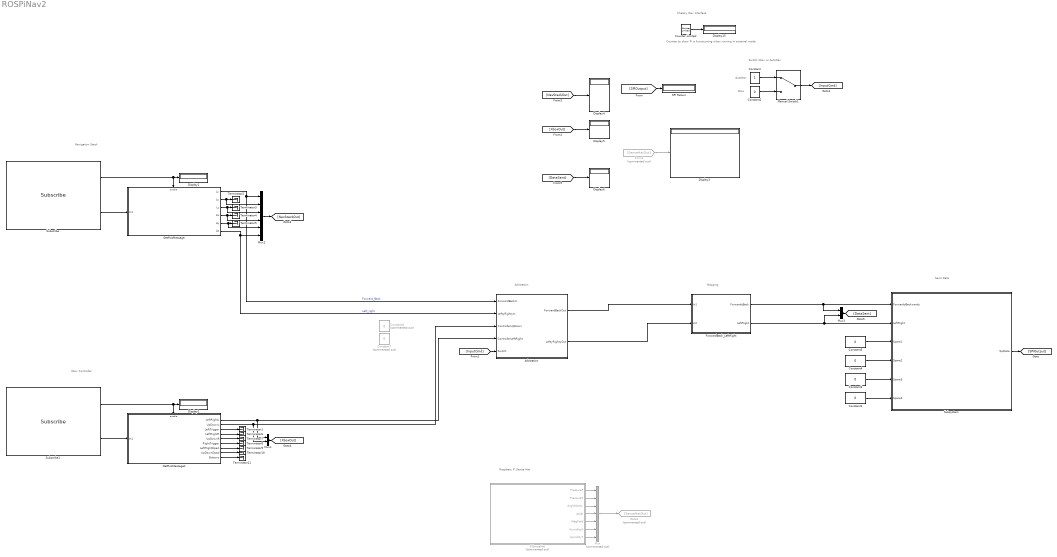
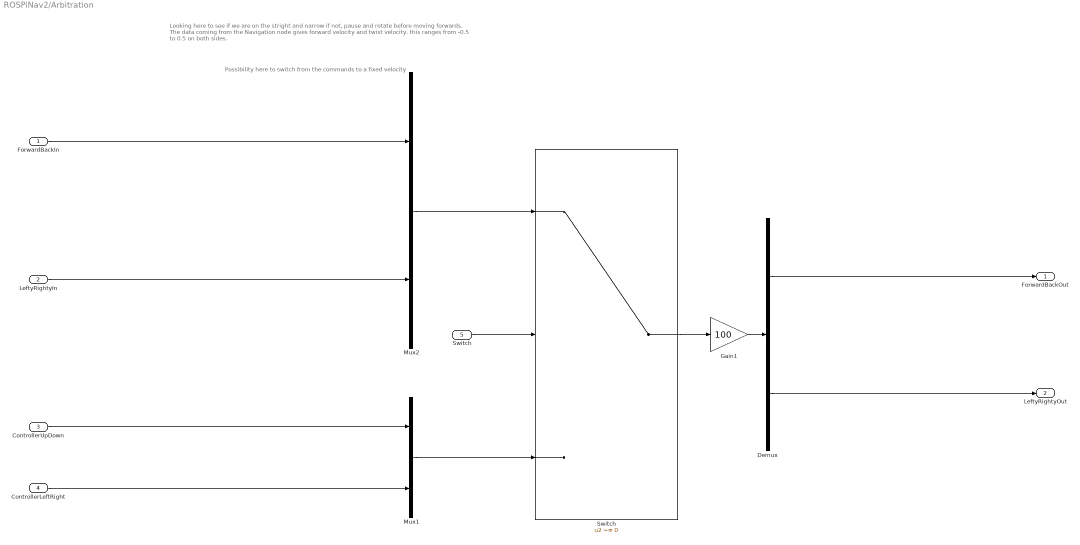
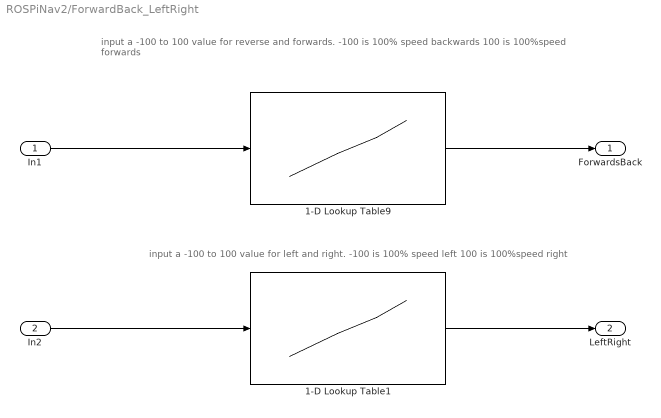
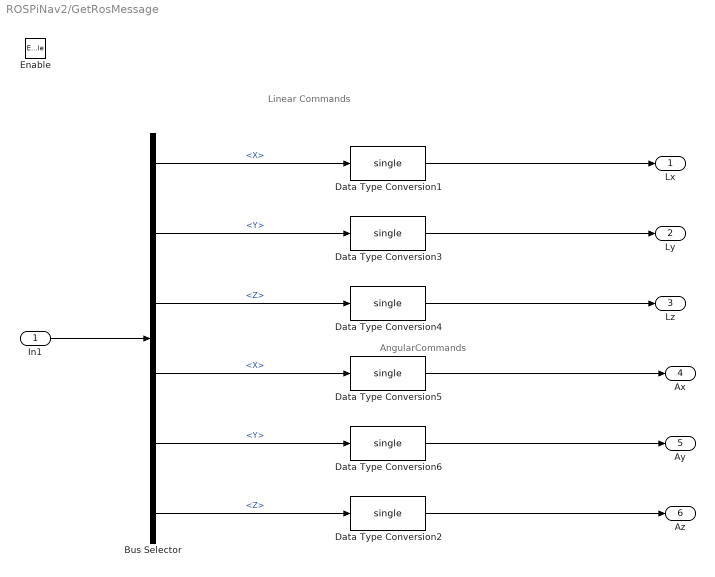
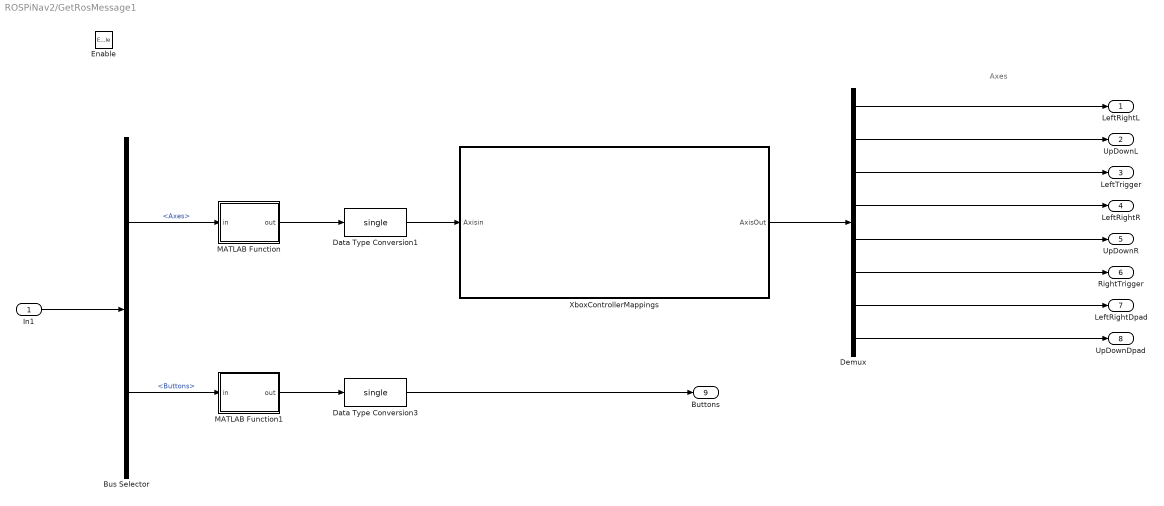
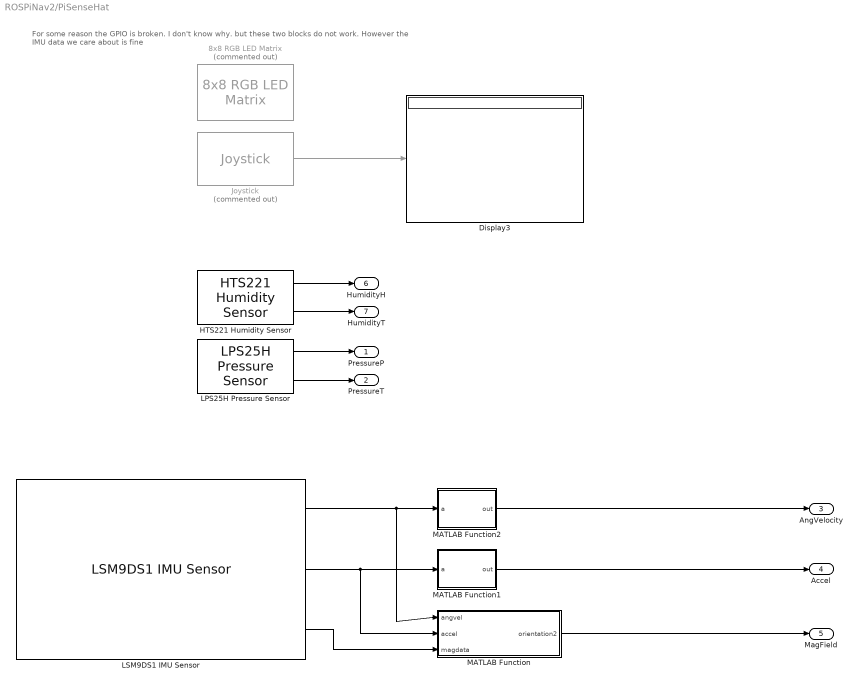
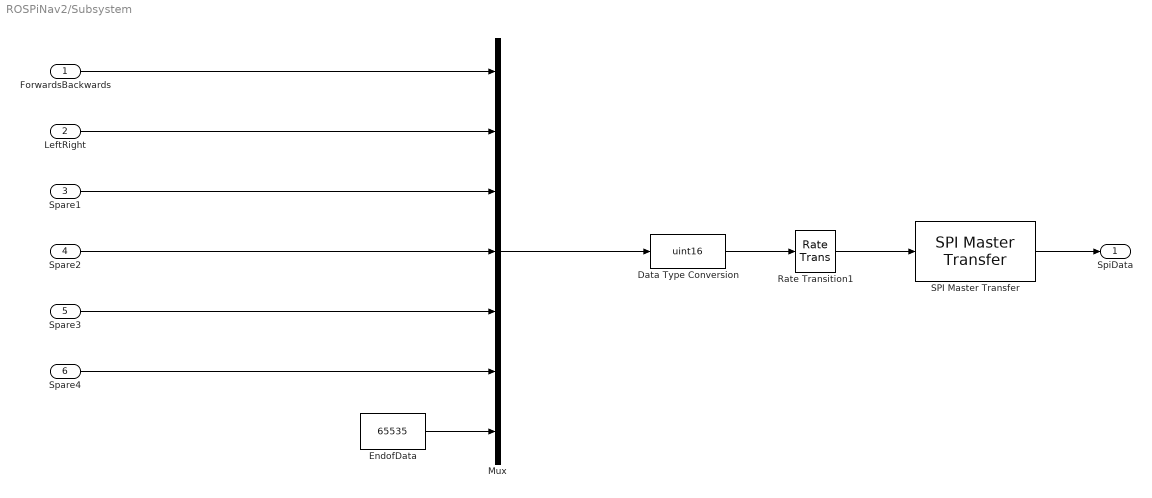
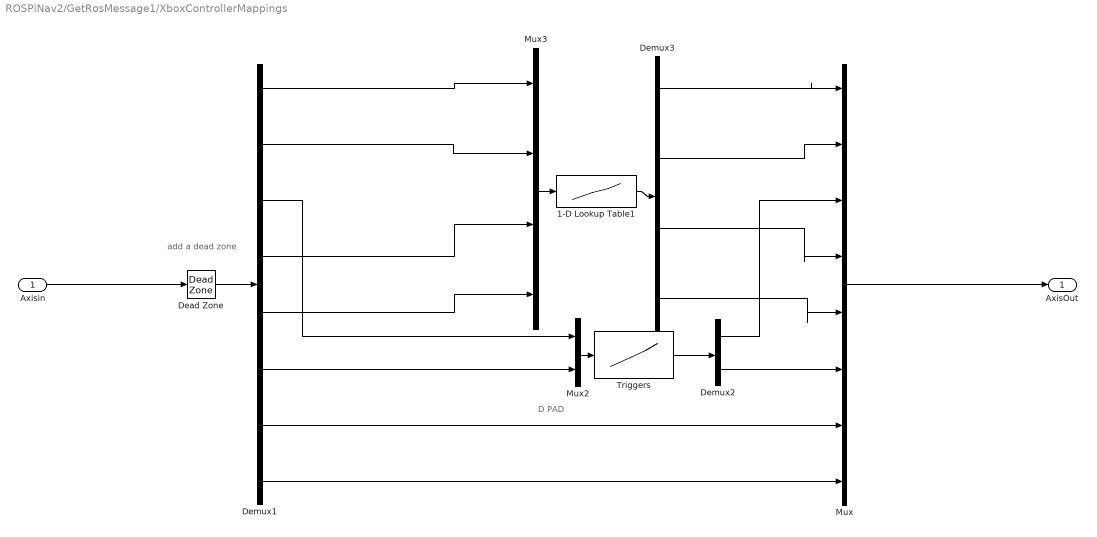
== matlab function GetRosMessage1/MATLAB Function1 ==
function out = fcn(in)

out = in(1:7);

== matlab function GetRosMessage1/MATLAB Function ==
function out = fcn(in)

out = in(1:8);

== matlab function PiSenseHat/MATLAB Function ==
function orientation2 = fcn(angvel, accel, magdata)

% x = a(:,1);
% y = a(:,2);
% z = a(:,3);
decim = 1;
FUSE = ahrsfilter('DecimationFactor',decim);
% out = atan(y/x) * (180/pi);
% orientation = 0;
[orientation] = FUSE(accel,angvel,magdata);
orientation = eulerd(orientation,'ZYX','frame');
orientation2 = orientation(1,3);

== matlab function PiSenseHat/MATLAB Function1 ==
function out = fcn(a)
x = a(:,1);
y = a(:,2);
z = a(:,3);
out = sqrt(sum(x.^2 + y.^2 + z.^2, 2));

== matlab function PiSenseHat/MATLAB Function2 ==
function out = fcn(a)
x = a(:,1);
y = a(:,2);
z = a(:,3);
out = sqrt(sum(x.^2 + y.^2 + z.^2, 2));

//
// Academic License - for use in teaching, academic research, and meeting
// course requirements at degree granting institutions only.  Not for
// government, commercial, or other organizational use.
//
// File: ROSPiNav2.cpp
//
// Code generated for Simulink model 'ROSPiNav2'.
//
// Model version                  : 1.4
// Simulink Coder version         : 9.2 (R2019b) 18-Jul-2019
// C/C++ source code generated on : Tue Feb 25 11:49:18 2020
//
// Target selection: ert.tlc
// Embedded hardware selection: ARM Compatible->ARM Cortex
// Code generation objectives: Unspecified
// Validation result: Not run
//
#include "ROSPiNav2.h"
#include "ROSPiNav2_private.h"
#include "ROSPiNav2_dt.h"

// Block signals (default storage)
B_ROSPiNav2_T ROSPiNav2_B;

// Block states (default storage)
DW_ROSPiNav2_T ROSPiNav2_DW;

// Real-time model
RT_MODEL_ROSPiNav2_T ROSPiNav2_M_ = RT_MODEL_ROSPiNav2_T();
RT_MODEL_ROSPiNav2_T *const ROSPiNav2_M = &ROSPiNav2_M_;

// Forward declaration for local functions
static void matlabCodegenHandle_matlabCodeg(ros_slros_internal_block_Subs_T *obj);
static void ROSPiNav2_SystemCore_release(const codertarget_raspi_internal_SP_T
  *obj);
static void ROSPiNav2_SystemCore_delete_ig(const codertarget_raspi_internal_SP_T
  *obj);
static void matlabCodegenHandle_matlabCo_ig(codertarget_raspi_internal_SP_T *obj);
static void rate_scheduler(void);
real32_T look1_iflf_binlcpw(real32_T u0, const real32_T bp0[], const real32_T
  table[], uint32_T maxIndex)
{
  real32_T frac;
  uint32_T iRght;
  uint32_T iLeft;
  uint32_T bpIdx;

  // Column-major Lookup 1-D
  // Search method: 'binary'
  // Use previous index: 'off'
  // Interpolation method: 'Linear point-slope'
  // Extrapolation method: 'Clip'
  // Use last breakpoint for index at or above upper limit: 'off'
  // Remove protection against out-of-range input in generated code: 'off'

  // Prelookup - Index and Fraction
  // Index Search method: 'binary'
  // Extrapolation method: 'Clip'
  // Use previous index: 'off'
  // Use last breakpoint for index at or above upper limit: 'off'
  // Remove protection against out-of-range input in generated code: 'off'

  if (u0 <= bp0[0U]) {
    iLeft = 0U;
    frac = 0.0F;
  } else if (u0 < bp0[maxIndex]) {
    // Binary Search
    bpIdx = maxIndex >> 1U;
    iLeft = 0U;
    iRght = maxIndex;
    while (iRght - iLeft > 1U) {
      if (u0 < bp0[bpIdx]) {
        iRght = bpIdx;
      } else {
        iLeft = bpIdx;
      }

      bpIdx = (iRght + iLeft) >> 1U;
    }

    frac = (u0 - bp0[iLeft]) / (bp0[iLeft + 1U] - bp0[iLeft]);
  } else {
    iLeft = maxIndex - 1U;
    frac = 1.0F;
  }

  // Column-major Interpolation 1-D
  // Interpolation method: 'Linear point-slope'
  // Use last breakpoint for index at or above upper limit: 'off'
  // Overflow mode: 'portable wrapping'

  return (table[iLeft + 1U] - table[iLeft]) * frac + table[iLeft];
}

real32_T look1_iflf_binlxpw(real32_T u0, const real32_T bp0[], const real32_T
  table[], uint32_T maxIndex)
{
  real32_T frac;
  uint32_T iRght;
  uint32_T iLeft;
  uint32_T bpIdx;

  // Column-major Lookup 1-D
  // Search method: 'binary'
  // Use previous index: 'off'
  // Interpolation method: 'Linear point-slope'
  // Extrapolation method: 'Linear'
  // Use last breakpoint for index at or above upper limit: 'off'
  // Remove protection against out-of-range input in generated code: 'off'

  // Prelookup - Index and Fraction
  // Index Search method: 'binary'
  // Extrapolation method: 'Linear'
  // Use previous index: 'off'
  // Use last breakpoint for index at or above upper limit: 'off'
  // Remove protection against out-of-range input in generated code: 'off'

  if (u0 <= bp0[0U]) {
    iLeft = 0U;
    frac = (u0 - bp0[0U]) / (bp0[1U] - bp0[0U]);
  } else if (u0 < bp0[maxIndex]) {
    // Binary Search
    bpIdx = maxIndex >> 1U;
    iLeft = 0U;
    iRght = maxIndex;
    while (iRght - iLeft > 1U) {
      if (u0 < bp0[bpIdx]) {
        iRght = bpIdx;
      } else {
        iLeft = bpIdx;
      }

      bpIdx = (iRght + iLeft) >> 1U;
    }

    frac = (u0 - bp0[iLeft]) / (bp0[iLeft + 1U] - bp0[iLeft]);
  } else {
    iLeft = maxIndex - 1U;
    frac = (u0 - bp0[maxIndex - 1U]) / (bp0[maxIndex] - bp0[maxIndex - 1U]);
  }

  // Column-major Interpolation 1-D
  // Interpolation method: 'Linear point-slope'
  // Use last breakpoint for index at or above upper limit: 'off'
  // Overflow mode: 'portable wrapping'

  return (table[iLeft + 1U] - table[iLeft]) * frac + table[iLeft];
}

//
//   This function updates active task flag for each subrate.
// The function is called at model base rate, hence the
// generated code self-manages all its subrates.
//
static void rate_scheduler(void)
{
  // Compute which subrates run during the next base time step.  Subrates
  //  are an integer multiple of the base rate counter.  Therefore, the subtask
  //  counter is reset when it reaches its limit (zero means run).

  (ROSPiNav2_M->Timing.TaskCounters.TID[1])++;
  if ((ROSPiNav2_M->Timing.TaskCounters.TID[1]) > 9) {// Sample time: [1.0s, 0.0s] 
    ROSPiNav2_M->Timing.TaskCounters.TID[1] = 0;
  }
}

real32_T rt_roundf_snf(real32_T u)
{
  real32_T y;
  if (static_cast<real32_T>(fabs(static_cast<real_T>(u))) < 8.388608E+6F) {
    if (u >= 0.5F) {
      y = static_cast<real32_T>(floor(static_cast<real_T>((u + 0.5F))));
    } else if (u > -0.5F) {
      y = u * 0.0F;
    } else {
      y = static_cast<real32_T>(ceil(static_cast<real_T>((u - 0.5F))));
    }
  } else {
    y = u;
  }

  return y;
}

static void matlabCodegenHandle_matlabCodeg(ros_slros_internal_block_Subs_T *obj)
{
  if (!obj->matlabCodegenIsDeleted) {
    obj->matlabCodegenIsDeleted = true;
  }
}

static void ROSPiNav2_SystemCore_release(const codertarget_raspi_internal_SP_T
  *obj)
{
  uint32_T PinNameLoc;
  uint32_T MOSIPinLoc;
  uint32_T MISOPinLoc;
  uint32_T SCKPinLoc;
  if ((obj->isInitialized == 1) && obj->isSetupComplete) {
    PinNameLoc = SPI0_CE0;
    MOSIPinLoc = MW_UNDEFINED_VALUE;
    MISOPinLoc = MW_UNDEFINED_VALUE;
    SCKPinLoc = MW_UNDEFINED_VALUE;
    MW_SPI_Close(obj->MW_SPI_HANDLE, MOSIPinLoc, MISOPinLoc, SCKPinLoc,
                 PinNameLoc);
  }
}

static void ROSPiNav2_SystemCore_delete_ig(const codertarget_raspi_internal_SP_T
  *obj)
{
  ROSPiNav2_SystemCore_release(obj);
}

static void matlabCodegenHandle_matlabCo_ig(codertarget_raspi_internal_SP_T *obj)
{
  if (!obj->matlabCodegenIsDeleted) {
    obj->matlabCodegenIsDeleted = true;
    ROSPiNav2_SystemCore_delete_ig(obj);
  }
}

// Model step function
void ROSPiNav2_step(void)
{
  uint32_T PinNameLoc;
  uint8_T status;
  MW_SPI_Mode_type ClockModeValue;
  MW_SPI_FirstBitTransfer_Type MsbFirstTransferLoc;
  uint16_T b_x[7];
  uint8_T y[2];
  uint8_T b_x_0[2];
  uint16_T y_0;
  real32_T rtb_ManualSwitch1;
  int32_T i;
  real32_T rtb_ManualSwitch1_0;
  uint16_T b_x_1;

  // Reset subsysRan breadcrumbs
  srClearBC(ROSPiNav2_DW.GetRosMessage_SubsysRanBC);

  // Reset subsysRan breadcrumbs
  srClearBC(ROSPiNav2_DW.GetRosMessage1_SubsysRanBC);

  // Reset subsysRan breadcrumbs
  srClearBC(ROSPiNav2_DW.EnabledSubsystem_SubsysRanBC_j);

  // Reset subsysRan breadcrumbs
  srClearBC(ROSPiNav2_DW.EnabledSubsystem_SubsysRanBC);

  // Outputs for Atomic SubSystem: '<Root>/Subscribe1'
  // MATLABSystem: '<S7>/SourceBlock'
  ROSPiNav2_B.SourceBlock_o1 = Sub_ROSPiNav2_137.getLatestMessage
    (&ROSPiNav2_B.b_varargout_2);

  // Outputs for Enabled SubSystem: '<S7>/Enabled Subsystem' incorporates:
  //   EnablePort: '<S15>/Enable'

  if (ROSPiNav2_B.SourceBlock_o1) {
    // Inport: '<S15>/In1' incorporates:
    //   MATLABSystem: '<S7>/SourceBlock'

    ROSPiNav2_B.In1 = ROSPiNav2_B.b_varargout_2;
    srUpdateBC(ROSPiNav2_DW.EnabledSubsystem_SubsysRanBC);
  }

  // End of Outputs for SubSystem: '<S7>/Enabled Subsystem'
  // End of Outputs for SubSystem: '<Root>/Subscribe1'

  // Outputs for Enabled SubSystem: '<Root>/GetRosMessage1' incorporates:
  //   EnablePort: '<S5>/Enable'

  if (ROSPiNav2_B.SourceBlock_o1) {
    // DeadZone: '<S13>/Dead Zone' incorporates:
    //   MATLAB Function: '<S5>/MATLAB Function'

    for (i = 0; i < 8; i++) {
      if (ROSPiNav2_B.In1.Axes[i] > ROSPiNav2_P.DeadZone_End) {
        ROSPiNav2_B.DeadZone[i] = ROSPiNav2_B.In1.Axes[i] -
          ROSPiNav2_P.DeadZone_End;
      } else if (ROSPiNav2_B.In1.Axes[i] >= ROSPiNav2_P.DeadZone_Start) {
        ROSPiNav2_B.DeadZone[i] = 0.0F;
      } else {
        ROSPiNav2_B.DeadZone[i] = ROSPiNav2_B.In1.Axes[i] -
          ROSPiNav2_P.DeadZone_Start;
      }
    }

    // End of DeadZone: '<S13>/Dead Zone'

    // Lookup_n-D: '<S13>/1-D Lookup Table1' incorporates:
    //   SignalConversion generated from: '<S13>/1-D Lookup Table1'

    ROSPiNav2_B.uDLookupTable1_j[0] = look1_iflf_binlxpw(ROSPiNav2_B.DeadZone[0],
      ROSPiNav2_P.uDLookupTable1_bp01Data, ROSPiNav2_P.uDLookupTable1_tableData,
      2U);
    ROSPiNav2_B.uDLookupTable1_j[1] = look1_iflf_binlxpw(ROSPiNav2_B.DeadZone[1],
      ROSPiNav2_P.uDLookupTable1_bp01Data, ROSPiNav2_P.uDLookupTable1_tableData,
      2U);
    ROSPiNav2_B.uDLookupTable1_j[2] = look1_iflf_binlxpw(ROSPiNav2_B.DeadZone[3],
      ROSPiNav2_P.uDLookupTable1_bp01Data, ROSPiNav2_P.uDLookupTable1_tableData,
      2U);
    ROSPiNav2_B.uDLookupTable1_j[3] = look1_iflf_binlxpw(ROSPiNav2_B.DeadZone[4],
      ROSPiNav2_P.uDLookupTable1_bp01Data, ROSPiNav2_P.uDLookupTable1_tableData,
      2U);

    // SignalConversion generated from: '<S5>/UpDownL'
    ROSPiNav2_B.OutportBufferForUpDownL = ROSPiNav2_B.uDLookupTable1_j[1];
    srUpdateBC(ROSPiNav2_DW.GetRosMessage1_SubsysRanBC);
  }

  // End of Outputs for SubSystem: '<Root>/GetRosMessage1'

  // Outputs for Atomic SubSystem: '<Root>/Subscribe'
  // MATLABSystem: '<S6>/SourceBlock'
  ROSPiNav2_B.SourceBlock_o1_g = Sub_ROSPiNav2_136.getLatestMessage
    (&ROSPiNav2_B.b_varargout_2_m);

  // Outputs for Enabled SubSystem: '<S6>/Enabled Subsystem' incorporates:
  //   EnablePort: '<S14>/Enable'

  if (ROSPiNav2_B.SourceBlock_o1_g) {
    // Inport: '<S14>/In1' incorporates:
    //   MATLABSystem: '<S6>/SourceBlock'

    ROSPiNav2_B.In1_l = ROSPiNav2_B.b_varargout_2_m;
    srUpdateBC(ROSPiNav2_DW.EnabledSubsystem_SubsysRanBC_j);
  }

  // End of Outputs for SubSystem: '<S6>/Enabled Subsystem'
  // End of Outputs for SubSystem: '<Root>/Subscribe'

  // Outputs for Enabled SubSystem: '<Root>/GetRosMessage' incorporates:
  //   EnablePort: '<S4>/Enable'

  if (ROSPiNav2_B.SourceBlock_o1_g) {
    // DataTypeConversion: '<S4>/Data Type Conversion1'
    ROSPiNav2_B.DataTypeConversion1 = static_cast<real32_T>
      (ROSPiNav2_B.In1_l.Linear.X);

    // DataTypeConversion: '<S4>/Data Type Conversion2'
    ROSPiNav2_B.DataTypeConversion2 = static_cast<real32_T>
      (ROSPiNav2_B.In1_l.Angular.Z);

    // DataTypeConversion: '<S4>/Data Type Conversion3'
    ROSPiNav2_B.DataTypeConversion3 = static_cast<real32_T>
      (ROSPiNav2_B.In1_l.Linear.Y);

    // DataTypeConversion: '<S4>/Data Type Conversion4'
    ROSPiNav2_B.DataTypeConversion4 = static_cast<real32_T>
      (ROSPiNav2_B.In1_l.Linear.Z);

    // DataTypeConversion: '<S4>/Data Type Conversion5'
    ROSPiNav2_B.DataTypeConversion5 = static_cast<real32_T>
      (ROSPiNav2_B.In1_l.Angular.X);

    // DataTypeConversion: '<S4>/Data Type Conversion6'
    ROSPiNav2_B.DataTypeConversion6 = static_cast<real32_T>
      (ROSPiNav2_B.In1_l.Angular.Y);
    srUpdateBC(ROSPiNav2_DW.GetRosMessage_SubsysRanBC);
  }

  // End of Outputs for SubSystem: '<Root>/GetRosMessage'

  // ManualSwitch: '<Root>/Manual Switch1' incorporates:
  //   Constant: '<Root>/Constant'
  //   Constant: '<Root>/Constant2'

  if (ROSPiNav2_P.ManualSwitch1_CurrentSetting == 1) {
    rtb_ManualSwitch1 = ROSPiNav2_P.Constant_Value_f;
  } else {
    rtb_ManualSwitch1 = ROSPiNav2_P.Constant2_Value;
  }

  // End of ManualSwitch: '<Root>/Manual Switch1'

  // Switch: '<S1>/Switch'
  if (rtb_ManualSwitch1 != 0.0F) {
    rtb_ManualSwitch1_0 = ROSPiNav2_B.DataTypeConversion1;
    rtb_ManualSwitch1 = ROSPiNav2_B.DataTypeConversion2;
  } else {
    rtb_ManualSwitch1_0 = ROSPiNav2_B.OutportBufferForUpDownL;
    rtb_ManualSwitch1 = ROSPiNav2_B.uDLookupTable1_j[0];
  }

  // End of Switch: '<S1>/Switch'

  // Lookup_n-D: '<S3>/1-D Lookup Table9' incorporates:
  //   Gain: '<S1>/Gain1'

  ROSPiNav2_B.uDLookupTable9 = look1_iflf_binlcpw(ROSPiNav2_P.Gain1_Gain *
    rtb_ManualSwitch1_0, ROSPiNav2_P.uDLookupTable9_bp01Data,
    ROSPiNav2_P.uDLookupTable9_tableData, 4U);

  // Lookup_n-D: '<S3>/1-D Lookup Table1' incorporates:
  //   Gain: '<S1>/Gain1'

  ROSPiNav2_B.uDLookupTable1 = look1_iflf_binlcpw(ROSPiNav2_P.Gain1_Gain *
    rtb_ManualSwitch1, ROSPiNav2_P.uDLookupTable1_bp01Data_g,
    ROSPiNav2_P.uDLookupTable1_tableData_b, 4U);

  // DataTypeConversion: '<S8>/Data Type Conversion' incorporates:
  //   Constant: '<Root>/Constant1'
  //   Constant: '<Root>/Constant3'
  //   Constant: '<Root>/Constant4'
  //   Constant: '<Root>/Constant5'
  //   Constant: '<S8>/EndofData'

  rtb_ManualSwitch1 = rt_roundf_snf(ROSPiNav2_B.uDLookupTable9);
  if (rtb_ManualSwitch1 < 65536.0F) {
    if (rtb_ManualSwitch1 >= 0.0F) {
      // MATLABSystem: '<S8>/SPI Master Transfer'
      b_x[0] = static_cast<uint16_T>(rtb_ManualSwitch1);
    } else {
      // MATLABSystem: '<S8>/SPI Master Transfer'
      b_x[0] = 0U;
    }
  } else {
    // MATLABSystem: '<S8>/SPI Master Transfer'
    b_x[0] = MAX_uint16_T;
  }

  rtb_ManualSwitch1 = rt_roundf_snf(ROSPiNav2_B.uDLookupTable1);
  if (rtb_ManualSwitch1 < 65536.0F) {
    if (rtb_ManualSwitch1 >= 0.0F) {
      // MATLABSystem: '<S8>/SPI Master Transfer'
      b_x[1] = static_cast<uint16_T>(rtb_ManualSwitch1);
    } else {
      // MATLABSystem: '<S8>/SPI Master Transfer'
      b_x[1] = 0U;
    }
  } else {
    // MATLABSystem: '<S8>/SPI Master Transfer'
    b_x[1] = MAX_uint16_T;
  }

  rtb_ManualSwitch1 = rt_roundf_snf(ROSPiNav2_P.Constant5_Value);
  if (rtb_ManualSwitch1 < 65536.0F) {
    if (rtb_ManualSwitch1 >= 0.0F) {
      // MATLABSystem: '<S8>/SPI Master Transfer'
      b_x[2] = static_cast<uint16_T>(rtb_ManualSwitch1);
    } else {
      // MATLABSystem: '<S8>/SPI Master Transfer'
      b_x[2] = 0U;
    }
  } else {
    // MATLABSystem: '<S8>/SPI Master Transfer'
    b_x[2] = MAX_uint16_T;
  }

  rtb_ManualSwitch1 = rt_roundf_snf(ROSPiNav2_P.Constant4_Value);
  if (rtb_ManualSwitch1 < 65536.0F) {
    if (rtb_ManualSwitch1 >= 0.0F) {
      // MATLABSystem: '<S8>/SPI Master Transfer'
      b_x[3] = static_cast<uint16_T>(rtb_ManualSwitch1);
    } else {
      // MATLABSystem: '<S8>/SPI Master Transfer'
      b_x[3] = 0U;
    }
  } else {
    // MATLABSystem: '<S8>/SPI Master Transfer'
    b_x[3] = MAX_uint16_T;
  }

  rtb_ManualSwitch1 = rt_roundf_snf(ROSPiNav2_P.Constant3_Value);
  if (rtb_ManualSwitch1 < 65536.0F) {
    if (rtb_ManualSwitch1 >= 0.0F) {
      // MATLABSystem: '<S8>/SPI Master Transfer'
      b_x[4] = static_cast<uint16_T>(rtb_ManualSwitch1);
    } else {
      // MATLABSystem: '<S8>/SPI Master Transfer'
      b_x[4] = 0U;
    }
  } else {
    // MATLABSystem: '<S8>/SPI Master Transfer'
    b_x[4] = MAX_uint16_T;
  }

  rtb_ManualSwitch1 = rt_roundf_snf(ROSPiNav2_P.Constant1_Value);
  if (rtb_ManualSwitch1 < 65536.0F) {
    if (rtb_ManualSwitch1 >= 0.0F) {
      // MATLABSystem: '<S8>/SPI Master Transfer'
      b_x[5] = static_cast<uint16_T>(rtb_ManualSwitch1);
    } else {
      // MATLABSystem: '<S8>/SPI Master Transfer'
      b_x[5] = 0U;
    }
  } else {
    // MATLABSystem: '<S8>/SPI Master Transfer'
    b_x[5] = MAX_uint16_T;
  }

  rtb_ManualSwitch1 = rt_roundf_snf(ROSPiNav2_P.EndofData_Value);
  if (rtb_ManualSwitch1 < 65536.0F) {
    if (rtb_ManualSwitch1 >= 0.0F) {
      // MATLABSystem: '<S8>/SPI Master Transfer'
      b_x[6] = static_cast<uint16_T>(rtb_ManualSwitch1);
    } else {
      // MATLABSystem: '<S8>/SPI Master Transfer'
      b_x[6] = 0U;
    }
  } else {
    // MATLABSystem: '<S8>/SPI Master Transfer'
    b_x[6] = MAX_uint16_T;
  }

  // End of DataTypeConversion: '<S8>/Data Type Conversion'

  // MATLABSystem: '<S8>/SPI Master Transfer'
  for (i = 0; i < 7; i++) {
    b_x_1 = b_x[i];
    memcpy((void *)&y[0], (void *)&b_x_1, (uint32_T)((size_t)2 * sizeof(uint8_T)));
    b_x_0[0] = y[1];
    b_x_0[1] = y[0];
    memcpy((void *)&y_0, (void *)&b_x_0[0], (uint32_T)((size_t)1 * sizeof
            (uint16_T)));
    b_x[i] = y_0;
  }

  memcpy((void *)&ROSPiNav2_B.wrDataRaw[0], (void *)&b_x[0], (uint32_T)((size_t)
          14 * sizeof(uint8_T)));
  PinNameLoc = SPI0_CE0;
  MW_SPI_SetSlaveSelect(ROSPiNav2_DW.obj.MW_SPI_HANDLE, PinNameLoc, true);
  ClockModeValue = MW_SPI_MODE_0;
  MsbFirstTransferLoc = MW_SPI_MOST_SIGNIFICANT_BIT_FIRST;
  status = MW_SPI_SetFormat(ROSPiNav2_DW.obj.MW_SPI_HANDLE, 8, ClockModeValue,
    MsbFirstTransferLoc);
  if (status == 0) {
    MW_SPI_MasterWriteRead_8bits(ROSPiNav2_DW.obj.MW_SPI_HANDLE,
      ROSPiNav2_B.wrDataRaw, ROSPiNav2_B.rdDataRaw, 14U);
  }

  memcpy((void *)&ROSPiNav2_B.SPIMasterTransfer[0], (void *)
         &ROSPiNav2_B.rdDataRaw[0], (uint32_T)((size_t)7 * sizeof(uint16_T)));
  for (i = 0; i < 7; i++) {
    b_x_1 = ROSPiNav2_B.SPIMasterTransfer[i];
    memcpy((void *)&y[0], (void *)&b_x_1, (uint32_T)((size_t)2 * sizeof(uint8_T)));
    b_x_0[0] = y[1];
    b_x_0[1] = y[0];
    memcpy((void *)&y_0, (void *)&b_x_0[0], (uint32_T)((size_t)1 * sizeof
            (uint16_T)));
    ROSPiNav2_B.SPIMasterTransfer[i] = y_0;
  }

  if (ROSPiNav2_M->Timing.TaskCounters.TID[1] == 0) {
    // UnitDelay: '<S2>/Output'
    ROSPiNav2_B.Output = ROSPiNav2_DW.Output_DSTATE;

    // Sum: '<S9>/FixPt Sum1' incorporates:
    //   Constant: '<S9>/FixPt Constant'

    ROSPiNav2_DW.Output_DSTATE = static_cast<uint8_T>((static_cast<uint32_T>
      (ROSPiNav2_B.Output) + ROSPiNav2_P.FixPtConstant_Value));

    // Switch: '<S10>/FixPt Switch' incorporates:
    //   Constant: '<S10>/Constant'
    //   UnitDelay: '<S2>/Output'

    if (ROSPiNav2_DW.Output_DSTATE > ROSPiNav2_P.CounterLimited_uplimit) {
      ROSPiNav2_DW.Output_DSTATE = ROSPiNav2_P.Constant_Value_a;
    }

    // End of Switch: '<S10>/FixPt Switch'
  }

  // External mode
  rtExtModeUploadCheckTrigger(2);

  {                                    // Sample time: [0.1s, 0.0s]
    rtExtModeUpload(0, (real_T)ROSPiNav2_M->Timing.taskTime0);
  }

  if (ROSPiNav2_M->Timing.TaskCounters.TID[1] == 0) {// Sample time: [1.0s, 0.0s] 
    rtExtModeUpload(1, (real_T)((ROSPiNav2_M->Timing.clockTick1) * 1.0));
  }

  // signal main to stop simulation
  {                                    // Sample time: [0.1s, 0.0s]
    if ((rtmGetTFinal(ROSPiNav2_M)!=-1) &&
        !((rtmGetTFinal(ROSPiNav2_M)-ROSPiNav2_M->Timing.taskTime0) >
          ROSPiNav2_M->Timing.taskTime0 * (DBL_EPSILON))) {
      rtmSetErrorStatus(ROSPiNav2_M, "Simulation finished");
    }

    if (rtmGetStopRequested(ROSPiNav2_M)) {
      rtmSetErrorStatus(ROSPiNav2_M, "Simulation finished");
    }
  }

  // Update absolute time for base rate
  // The "clockTick0" counts the number of times the code of this task has
  //  been executed. The absolute time is the multiplication of "clockTick0"
  //  and "Timing.stepSize0". Size of "clockTick0" ensures timer will not
  //  overflow during the application lifespan selected.

  ROSPiNav2_M->Timing.taskTime0 =
    (++ROSPiNav2_M->Timing.clockTick0) * ROSPiNav2_M->Timing.stepSize0;
  if (ROSPiNav2_M->Timing.TaskCounters.TID[1] == 0) {
    // Update absolute timer for sample time: [1.0s, 0.0s]
    // The "clockTick1" counts the number of times the code of this task has
    //  been executed. The resolution of this integer timer is 1.0, which is the step size
    //  of the task. Size of "clockTick1" ensures timer will not overflow during the
    //  application lifespan selected.

    ROSPiNav2_M->Timing.clockTick1++;
  }

  rate_scheduler();
}
